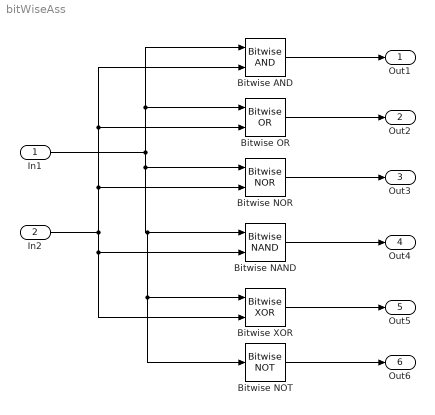
/*
 * File: bitWiseAss.c
 *
 * Code generated for Simulink model 'bitWiseAss'.
 *
 * Model version                  : 1.1
 * Simulink Coder version         : 9.0 (R2018b) 24-May-2018
 * C/C++ source code generated on : Sat Feb 26 09:03:58 2022
 *
 * Target selection: ert.tlc
 * Embedded hardware selection: Intel->x86-64 (Windows64)
 * Code generation objectives: Unspecified
 * Validation result: Not run
 */

#include "bitWiseAss.h"
#include "bitWiseAss_private.h"

/* External inputs (root inport signals with default storage) */
ExtU_bitWiseAss_T bitWiseAss_U;

/* External outputs (root outports fed by signals with default storage) */
ExtY_bitWiseAss_T bitWiseAss_Y;

/* Real-time model */
RT_MODEL_bitWiseAss_T bitWiseAss_M_;
RT_MODEL_bitWiseAss_T *const bitWiseAss_M = &bitWiseAss_M_;

/* Model step function */
void bitWiseAss_step(void)
{
  /* Outport: '<Root>/Out1' incorporates:
   *  Inport: '<Root>/In1'
   *  Inport: '<Root>/In2'
   *  S-Function (sfix_bitop): '<Root>/Bitwise AND'
   *  S-Function (sfix_bitop): '<Root>/Bitwise NAND'
   */
  bitWiseAss_Y.Out1 = (int8_T)(bitWiseAss_U.In1 & bitWiseAss_U.In2);

  /* Outport: '<Root>/Out2' incorporates:
   *  Inport: '<Root>/In1'
   *  Inport: '<Root>/In2'
   *  S-Function (sfix_bitop): '<Root>/Bitwise NOR'
   *  S-Function (sfix_bitop): '<Root>/Bitwise OR'
   */
  bitWiseAss_Y.Out2 = (int8_T)(bitWiseAss_U.In1 | bitWiseAss_U.In2);

  /* Outport: '<Root>/Out3' incorporates:
   *  S-Function (sfix_bitop): '<Root>/Bitwise NOR'
   */
  bitWiseAss_Y.Out3 = (int8_T)~bitWiseAss_Y.Out2;

  /* Outport: '<Root>/Out4' incorporates:
   *  S-Function (sfix_bitop): '<Root>/Bitwise NAND'
   */
  bitWiseAss_Y.Out4 = (int8_T)~bitWiseAss_Y.Out1;

  /* Outport: '<Root>/Out5' incorporates:
   *  Inport: '<Root>/In1'
   *  Inport: '<Root>/In2'
   *  S-Function (sfix_bitop): '<Root>/Bitwise XOR'
   */
  bitWiseAss_Y.Out5 = (int8_T)(bitWiseAss_U.In1 ^ bitWiseAss_U.In2);

  /* Outport: '<Root>/Out6' incorporates:
   *  Inport: '<Root>/In1'
   *  S-Function (sfix_bitop): '<Root>/Bitwise NOT'
   */
  bitWiseAss_Y.Out6 = (int8_T)~bitWiseAss_U.In1;
}
